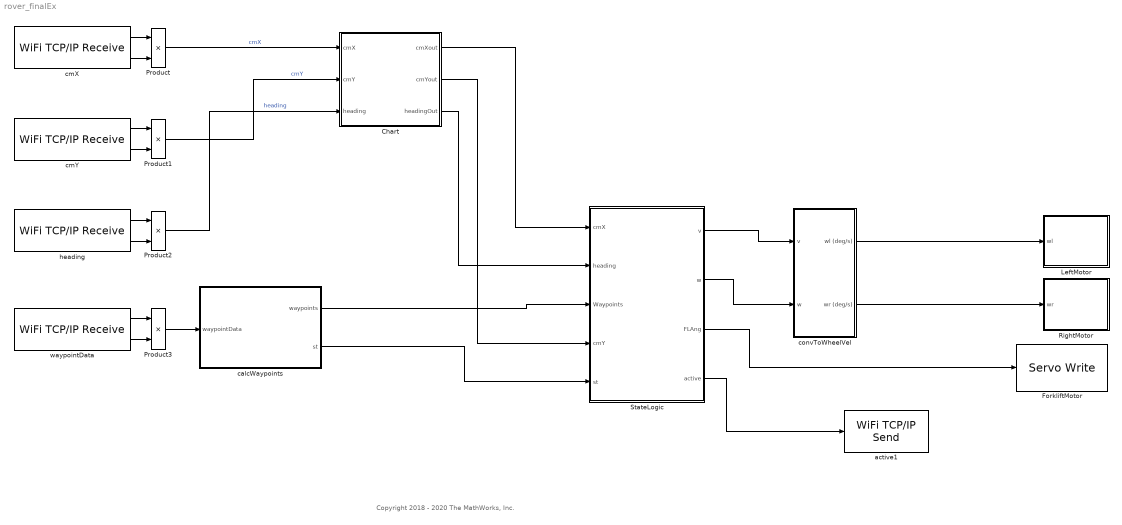
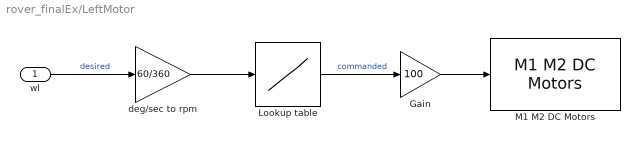
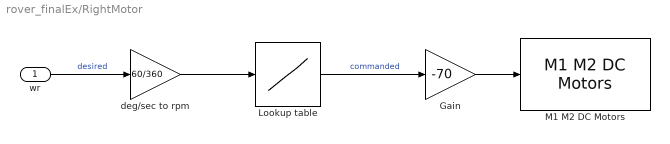
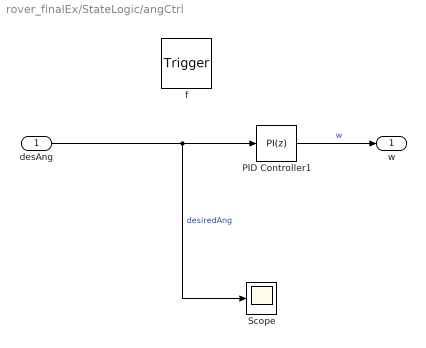
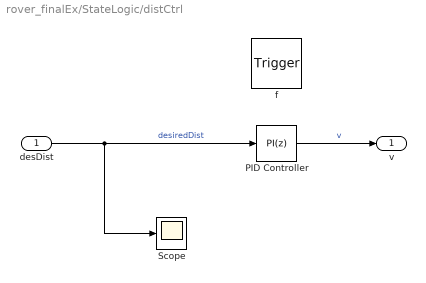
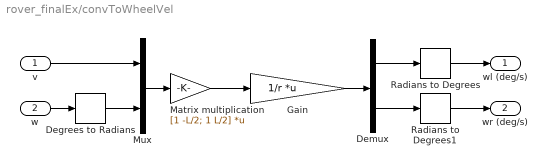
== stateflow chart rover_finalEx/calcWaypoints ==
  state waitForCalc
    en, du, ex:
    st = 0;
  state send
    en:
    waypoints = way;
    st = 1;
  state calc
    en:
    way(row, col) = waypointData;
    st = 0;
  state modPos
    en:
    col = 0;
    row = row + 1;
    st = 0;
  (default) -> waitForCalc
  waitForCalc -> send [order 2] : [row > 3]
  modPos -> waitForCalc
  calc -> waitForCalc [order 2]
  waitForCalc -> calc [order 1] : [waypointData ~= 0 && (row <= 3)]{col = col+1}
  calc -> modPos [order 1] : [col >= 2]
  data: waypoints output; waypointData input; row local =1; col local =0; way local =[0 0; 0 0; 0 0]; st output

== stateflow chart rover_finalEx/Chart ==
  state modifyHEADING
    en:
    headingOldValue = heading;
  state Send
    en:
    cmXout = cmXOldValue;
    cmYout = cmYOldValue;
    headingOut = headingOldValue;
  state modifyCMX
    en:
    cmXOldValue = cmX;
  state modifyCMY
    en:
    cmYOldValue = cmY;
  (default) -> Send
  modifyHEADING -> Send
  Send -> modifyCMX [order 1] : [cmX ~= 0]
  Send -> modifyHEADING [order 2] : [heading ~= 0]
  modifyCMX -> Send
  modifyCMY -> Send
  Send -> modifyCMY [order 3] : [cmY ~= 0]
  data: cmX input; cmY input; heading input; cmXout output; cmYout output; headingOut output; cmXOldValue local =0; cmYOldValue local =0; headingOldValue local =0

== stateflow chart rover_finalEx/StateLogic ==
  state Pause
    entry:
    v = 0; w= 0; FLAng = 160;
    active = 1;
  state Pause1
    entry:
    v = 0; w = 0; FLAng = 160;
    active = 1;
  state MoveForwardAndDrop
    state MoveToNextWayPoint
      en:
      desDist = calcDist(WPIndex)-10;
      v = distCtrl(desDist);
      du, ex:
      desDist = calcDist(WPIndex)-10;
      v = distCtrl(desDist);
      w = 0;
    state DropForklift
      en, du, ex:
      v = 0;
      w = 0;
      FLAng = FLAng-1;
    (default) -> MoveForwardAndDrop.MoveToNextWayPoint
    MoveForwardAndDrop.MoveToNextWayPoint -> MoveForwardAndDrop.DropForklift : [abs(desDist) < 6]{WPIndex = WPIndex+1}
  state Turn
    en:
    desAng = calcAngle(WPIndex);
    w = angCtrl(desAng);
    du:
    desAng = calcAngle(WPIndex);
    v = 0;
    w = angCtrl(desAng);
    ex:
    w = 0;
  state w = angCtrl(desAng) [function]
  state MoveForwardAndPickUp
    state MoveToNextWayPoint
      en:
      desDist = calcDist(WPIndex);
      v = distCtrl(desDist);
      du, ex:
      desDist = calcDist(WPIndex);
      v = distCtrl(desDist);
      w = 0;
    state DropForklift
      en, du, ex:
      v = 0;
      w = 0;
      FLAng = FLAng-1;
    state MoveRemaining
      du, ex:
      desDist = calcDist(WPIndex);
      v = distCtrl(desDist);
      w = 0;
    state LiftForklift1
      en, du, ex:
      v = 0;
      w = 0;
      FLAng = FLAng+1;
    (default) -> MoveForwardAndPickUp.MoveToNextWayPoint
    MoveForwardAndPickUp.MoveToNextWayPoint -> MoveForwardAndPickUp.DropForklift : [abs(desDist) < 20]
    MoveForwardAndPickUp.DropForklift -> MoveRemaining : [FLAng < 80]
    MoveRemaining -> LiftForklift1 : [abs(desDist) < 6]{WPIndex = WPIndex+1}
  state v = distCtrl(desDist) [function]
  state Stop
    en:
    v = 0;
    w = 0;
    active = 0;
  MoveForwardAndDrop.DropForklift -> (junction 182) : [FLAng < 80]
  LiftForklift1 -> (junction 182) : [FLAng > 160]
  (default) -> Pause
  Pause -> Pause1 : [st == 1 && cmX ~= 0 && cmY ~= 0]
  Pause1 -> Turn : after(1,sec)
  Turn -> (junction 198) : [abs(desAng) < 8]
  (junction 198) -> MoveForwardAndDrop [order 2] : [WPIndex == 2]
  (junction 198) -> MoveForwardAndPickUp [order 1] : [WPIndex == 1]
  (junction 182) -> Turn [order 2]
  (junction 182) -> Stop [order 1] : [WPIndex == size(Waypoints,1)]
  data: desAngle function_output; Index function_input; desDistance function_output; Index function_input; desAng function_input double; w function_output; desDist function_input double; v function_output; cmX input; heading input; v output double; w output double; desDist local; desAng local; Waypoints input; WPIndex local =1; FLAng output; cmY input; st input; active output
  function desAngle  = calcAngle(Index):
    | function desAngle  = calcAngle(Index)
    | 
    | toReachX = Waypoints(Index+1,1);
    | toReachY = Waypoints(Index+1,2);
    | x = cmX;
    | y = cmY;
    | distX = toReachX - x;
    | distY = toReachY - y;
    | if distX > 0 && distY >= 0
    |     quadrant = 1;
    | elseif distX <= 0 && distY > 0
    |     quadrant = 2;
    | elseif distX < 0 && distY <= 0
    |     quadrant = 3;
    | elseif distX >= 0 && distY < 0
    |     quadrant = 4;
    | else
    |     quadrant = 0;
    | end
    | desAngle = atand((toReachY-y)/(toReachX-x));
    | switch quadrant
    |     case 1
    |         
    |     case 2
    |         desAngle = 180-abs(desAngle);
    |     case 3
    |         desAngle = 180+desAngle;
    |     case 4
    |         desAngle = 360+desAngle;
    |     otherwise 
    |         desAngle = 0;
    | end
    | if desAngle > 360 
    |     desAngle = desAngle - 360;
    | end
    | 
    | desAngle = desAngle - 180;      %conversion needed to avoid the offset of 
    |                                 %the value compared to heading
    | desAngle = desAngle + heading;  %the angle to face the target
    | 
    |  if(desAngle > 180)             %conversions to avoid spinning too much
    |    desAngle = desAngle - 360;
    |  elseif(desAngle < -180)
    |      desAngle = desAngle + 360;
    |  end
    | end
  function desDistance = calcDist(Index):
    | function desDistance = calcDist(Index)
    | 
    | toReachX = Waypoints(Index+1,1);
    | toReachY = Waypoints(Index+1,2);
    | x = cmX;
    | y = cmY;
    | distX = toReachX - x;
    | distY = toReachY - y;
    | desDistance = sqrt(distX^2+distY^2);
    | end

/*
 * rover_finalEx.c
 *
 * Academic License - for use in teaching, academic research, and meeting
 * course requirements at degree granting institutions only.  Not for
 * government, commercial, or other organizational use.
 *
 * Code generation for model "rover_finalEx".
 *
 * Model version              : 6.2
 * Simulink Coder version : 9.8 (R2022b) 13-May-2022
 * C source code generated on : Sat Mar 11 14:32:02 2023
 *
 * Target selection: ert.tlc
 * Embedded hardware selection: ARM Compatible->ARM Cortex
 * Code generation objectives: Unspecified
 * Validation result: Not run
 */

#include "rover_finalEx.h"
#include "rtwtypes.h"
#include "rover_finalEx_types.h"
#include "rover_finalEx_private.h"
#include <math.h>
#include <string.h>
#include <stddef.h>

/* Named constants for Chart: '<Root>/Chart' */
#define rover_finalE_IN_NO_ACTIVE_CHILD ((uint8_T)0U)
#define rover_finalEx_IN_Send          ((uint8_T)1U)
#define rover_finalEx_IN_modifyCMX     ((uint8_T)2U)
#define rover_finalEx_IN_modifyCMY     ((uint8_T)3U)
#define rover_finalEx_IN_modifyHEADING ((uint8_T)4U)

/* Named constants for Chart: '<Root>/StateLogic' */
#define rover_f_IN_MoveForwardAndPickUp ((uint8_T)2U)
#define rover_f_IN_MoveToNextWayPoint_a ((uint8_T)4U)
#define rover_fin_IN_MoveForwardAndDrop ((uint8_T)1U)
#define rover_fin_IN_MoveToNextWayPoint ((uint8_T)2U)
#define rover_finalEx_IN_DropForklift  ((uint8_T)1U)
#define rover_finalEx_IN_LiftForklift1 ((uint8_T)2U)
#define rover_finalEx_IN_MoveRemaining ((uint8_T)3U)
#define rover_finalEx_IN_Pause         ((uint8_T)3U)
#define rover_finalEx_IN_Pause1        ((uint8_T)4U)
#define rover_finalEx_IN_Stop          ((uint8_T)5U)
#define rover_finalEx_IN_Turn          ((uint8_T)6U)

/* Named constants for Chart: '<Root>/calcWaypoints' */
#define rover_finalEx_IN_calc          ((uint8_T)1U)
#define rover_finalEx_IN_modPos        ((uint8_T)2U)
#define rover_finalEx_IN_send          ((uint8_T)3U)
#define rover_finalEx_IN_waitForCalc   ((uint8_T)4U)

/* Block signals (default storage) */
B_rover_finalEx_T rover_finalEx_B;

/* Block states (default storage) */
DW_rover_finalEx_T rover_finalEx_DW;

/* Real-time model */
static RT_MODEL_rover_finalEx_T rover_finalEx_M_;
RT_MODEL_rover_finalEx_T *const rover_finalEx_M = &rover_finalEx_M_;

/* Forward declaration for local functions */
static real_T rover_finalEx_calcAngle(real_T Index);
static real_T rover_finalEx_calcDist(real_T Index);
static void mkrmotorcarrier_ServoMotor_Serv(const
  motorcarrier_blocks_mkrmotorc_T *obj, int32_T value);
static void rover_fina_SystemCore_setup_iac(codertarget_arduinobase_int_i_T *obj);
static void rover_fin_SystemCore_setup_iacf(codertarget_arduinobase_int_i_T *obj);
static void rover_fi_SystemCore_setup_iacfj(codertarget_arduinobase_int_i_T *obj);
static void rover_f_SystemCore_setup_iacfjg(codertarget_arduinobase_int_i_T *obj);
static void rover_finalEx_SystemCore_setup(motorcarrier_blocks_mkrmotorc_T *obj);
static void rover_finalE_SystemCore_setup_i(motorcarrier_blocks_mkrmoto_i_T *obj);
static void rover_final_SystemCore_setup_ia(motorcarrier_blocks_mkrmoto_i_T *obj);
real_T look1_binlxpw(real_T u0, const real_T bp0[], const real_T table[],
                     uint32_T maxIndex)
{
  real_T frac;
  real_T yL_0d0;
  uint32_T bpIdx;
  uint32_T iLeft;
  uint32_T iRght;

  /* Column-major Lookup 1-D
     Search method: 'binary'
     Use previous index: 'off'
     Interpolation method: 'Linear point-slope'
     Extrapolation method: 'Linear'
     Use last breakpoint for index at or above upper limit: 'off'
     Remove protection against out-of-range input in generated code: 'off'
   */
  /* Prelookup - Index and Fraction
     Index Search method: 'binary'
     Extrapolation method: 'Linear'
     Use previous index: 'off'
     Use last breakpoint for index at or above upper limit: 'off'
     Remove protection against out-of-range input in generated code: 'off'
   */
  if (u0 <= bp0[0U]) {
    iLeft = 0U;
    frac = (u0 - bp0[0U]) / (bp0[1U] - bp0[0U]);
  } else if (u0 < bp0[maxIndex]) {
    /* Binary Search */
    bpIdx = maxIndex >> 1U;
    iLeft = 0U;
    iRght = maxIndex;
    while (iRght - iLeft > 1U) {
      if (u0 < bp0[bpIdx]) {
        iRght = bpIdx;
      } else {
        iLeft = bpIdx;
      }

      bpIdx = (iRght + iLeft) >> 1U;
    }

    frac = (u0 - bp0[iLeft]) / (bp0[iLeft + 1U] - bp0[iLeft]);
  } else {
    iLeft = maxIndex - 1U;
    frac = (u0 - bp0[maxIndex - 1U]) / (bp0[maxIndex] - bp0[maxIndex - 1U]);
  }

  /* Column-major Interpolation 1-D
     Interpolation method: 'Linear point-slope'
     Use last breakpoint for index at or above upper limit: 'off'
     Overflow mode: 'portable wrapping'
   */
  yL_0d0 = table[iLeft];
  return (table[iLeft + 1U] - yL_0d0) * frac + yL_0d0;
}

void mul_wide_s32(int32_T in0, int32_T in1, uint32_T *ptrOutBitsHi, uint32_T
                  *ptrOutBitsLo)
{
  uint32_T absIn0;
  uint32_T absIn1;
  uint32_T in0Hi;
  uint32_T in0Lo;
  uint32_T in1Hi;
  uint32_T productHiLo;
  uint32_T productLoHi;
  absIn0 = in0 < 0 ? ~(uint32_T)in0 + 1U : (uint32_T)in0;
  absIn1 = in1 < 0 ? ~(uint32_T)in1 + 1U : (uint32_T)in1;
  in0Hi = absIn0 >> 16U;
  in0Lo = absIn0 & 65535U;
  in1Hi = absIn1 >> 16U;
  absIn0 = absIn1 & 65535U;
  productHiLo = in0Hi * absIn0;
  productLoHi = in0Lo * in1Hi;
  absIn0 *= in0Lo;
  absIn1 = 0U;
  in0Lo = (productLoHi << /*MW:OvBitwiseOk*/ 16U) + /*MW:OvCarryOk*/ absIn0;
  if (in0Lo < absIn0) {
    absIn1 = 1U;
  }

  absIn0 = in0Lo;
  in0Lo += /*MW:OvCarryOk*/ productHiLo << /*MW:OvBitwiseOk*/ 16U;
  if (in0Lo < absIn0) {
    absIn1++;
  }

  absIn0 = (((productLoHi >> 16U) + (productHiLo >> 16U)) + in0Hi * in1Hi) +
    absIn1;
  if ((in0 != 0) && ((in1 != 0) && ((in0 > 0) != (in1 > 0)))) {
    absIn0 = ~absIn0;
    in0Lo = ~in0Lo;
    in0Lo++;
    if (in0Lo == 0U) {
      absIn0++;
    }
  }

  *ptrOutBitsHi = absIn0;
  *ptrOutBitsLo = in0Lo;
}

int32_T mul_s32_sat(int32_T a, int32_T b)
{
  int32_T result;
  uint32_T u32_chi;
  uint32_T u32_clo;
  mul_wide_s32(a, b, &u32_chi, &u32_clo);
  if (((int32_T)u32_chi > 0) || ((u32_chi == 0U) && (u32_clo >= 2147483648U))) {
    result = MAX_int32_T;
  } else if (((int32_T)u32_chi < -1) || (((int32_T)u32_chi == -1) && (u32_clo <
               2147483648U))) {
    result = MIN_int32_T;
  } else {
    result = (int32_T)u32_clo;
  }

  return result;
}

/* System initialize for function-call system: '<S4>/angCtrl' */
void rover_finalEx_angCtrl_Init(DW_angCtrl_rover_finalEx_T *localDW,
  P_angCtrl_rover_finalEx_T *localP)
{
  /* InitializeConditions for DiscreteIntegrator: '<S41>/Integrator' */
  localDW->Integrator_DSTATE = localP->PIDController1_InitialCondition;
}

/* Output and update for function-call system: '<S4>/angCtrl' */
void rover_finalEx_angCtrl(real_T rtu_desAng, B_angCtrl_rover_finalEx_T *localB,
  DW_angCtrl_rover_finalEx_T *localDW, P_angCtrl_rover_finalEx_T *localP)
{
  /* Sum: '<S50>/Sum' incorporates:
   *  DiscreteIntegrator: '<S41>/Integrator'
   *  Gain: '<S46>/Proportional Gain'
   */
  localB->Sum = localP->PIDController1_P * rtu_desAng +
    localDW->Integrator_DSTATE;

  /* Update for DiscreteIntegrator: '<S41>/Integrator' incorporates:
   *  Gain: '<S38>/Integral Gain'
   */
  localDW->Integrator_DSTATE += localP->PIDController1_I * rtu_desAng *
    localP->Integrator_gainval;
}

/* System initialize for function-call system: '<S4>/distCtrl' */
void rover_finalEx_distCtrl_Init(DW_distCtrl_rover_finalEx_T *localDW,
  P_distCtrl_rover_finalEx_T *localP)
{
  /* InitializeConditions for DiscreteIntegrator: '<S90>/Integrator' */
  localDW->Integrator_DSTATE = localP->PIDController_InitialConditionF;
}

/* Output and update for function-call system: '<S4>/distCtrl' */
void rover_finalEx_distCtrl(real_T rtu_desDist, B_distCtrl_rover_finalEx_T
  *localB, DW_distCtrl_rover_finalEx_T *localDW, P_distCtrl_rover_finalEx_T
  *localP)
{
  /* Sum: '<S99>/Sum' incorporates:
   *  DiscreteIntegrator: '<S90>/Integrator'
   *  Gain: '<S95>/Proportional Gain'
   */
  localB->Sum = localP->PIDController_P * rtu_desDist +
    localDW->Integrator_DSTATE;

  /* Update for DiscreteIntegrator: '<S90>/Integrator' incorporates:
   *  Gain: '<S87>/Integral Gain'
   */
  localDW->Integrator_DSTATE += localP->PIDController_I * rtu_desDist *
    localP->Integrator_gainval;
}

/* Function for Chart: '<Root>/StateLogic' */
static real_T rover_finalEx_calcAngle(real_T Index)
{
  real_T desAngle;
  real_T distX_tmp;
  real_T distY_tmp;
  int32_T tmp;
  distX_tmp = rover_finalEx_B.waypoints[(int32_T)(Index + 1.0) - 1] -
    rover_finalEx_B.cmXout;
  distY_tmp = rover_finalEx_B.waypoints[(int32_T)(Index + 1.0) + 2] -
    rover_finalEx_B.cmYout;
  desAngle = atan(distY_tmp / distX_tmp) * 57.295779513082323;
  if ((distX_tmp > 0.0) && (distY_tmp >= 0.0)) {
    tmp = 1;
  } else if ((distX_tmp <= 0.0) && (distY_tmp > 0.0)) {
    tmp = 2;
  } else if ((distX_tmp < 0.0) && (distY_tmp <= 0.0)) {
    tmp = 3;
  } else if ((distX_tmp >= 0.0) && (distY_tmp < 0.0)) {
    tmp = 4;
  } else {
    tmp = 0;
  }

  switch (tmp) {
   case 1:
    break;

   case 2:
    desAngle = 180.0 - fabs(desAngle);
    break;

   case 3:
    desAngle += 180.0;
    break;

   case 4:
    desAngle += 360.0;
    break;

   default:
    desAngle = 0.0;
    break;
  }

  if (desAngle > 360.0) {
    desAngle -= 360.0;
  }

  desAngle -= 180.0;
  desAngle += rover_finalEx_B.headingOut;
  if (desAngle > 180.0) {
    desAngle -= 360.0;
  } else if (desAngle < -180.0) {
    desAngle += 360.0;
  }

  return desAngle;
}

/* Function for Chart: '<Root>/StateLogic' */
static real_T rover_finalEx_calcDist(real_T Index)
{
  real_T a;
  real_T b_a;
  a = rover_finalEx_B.waypoints[(int32_T)(Index + 1.0) - 1] -
    rover_finalEx_B.cmXout;
  b_a = rover_finalEx_B.waypoints[(int32_T)(Index + 1.0) + 2] -
    rover_finalEx_B.cmYout;
  return sqrt(a * a + b_a * b_a);
}

real_T rt_roundd_snf(real_T u)
{
  real_T y;
  if (fabs(u) < 4.503599627370496E+15) {
    if (u >= 0.5) {
      y = floor(u + 0.5);
    } else if (u > -0.5) {
      y = u * 0.0;
    } else {
      y = ceil(u - 0.5);
    }
  } else {
    y = u;
  }

  return y;
}

static void mkrmotorcarrier_ServoMotor_Serv(const
  motorcarrier_blocks_mkrmotorc_T *obj, int32_T value)
{
  int32_T x;
  int32_T z;
  uint32_T q;
  uint32_T y;
  uint8_T SwappedDataBytes[6];
  uint8_T final_data_to_write[6];
  uint8_T data_uint8[4];
  x = mul_s32_sat(value, 21);
  if (x >= 0) {
    y = (uint32_T)x;
  } else if (x == MIN_int32_T) {
    y = 2147483648U;
  } else {
    y = (uint32_T)-x;
  }

  q = y / 180U;
  y -= q * 180U;
  if ((y > 0U) && (y >= 90U)) {
    q++;
  }

  z = (int32_T)q;
  if (x < 0) {
    z = -(int32_T)q;
  }

  x = z + 7;
  memcpy((void *)&data_uint8[0], (void *)&x, (size_t)4 * sizeof(uint8_T));
  final_data_to_write[0] = 3U;
  final_data_to_write[1] = 2U;
  final_data_to_write[2] = data_uint8[0];
  final_data_to_write[3] = data_uint8[1];
  final_data_to_write[4] = data_uint8[2];
  final_data_to_write[5] = data_uint8[3];
  memcpy((void *)&SwappedDataBytes[0], (void *)&final_data_to_write[0], (size_t)
         6 * sizeof(uint8_T));
  MW_I2C_MasterWrite(obj->i2cObj.I2CDriverObj.MW_I2C_HANDLE, 102U,
                     &SwappedDataBytes[0], 6U, false, false);
}

static void rover_fina_SystemCore_setup_iac(codertarget_arduinobase_int_i_T *obj)
{
  obj->isInitialized = 1;
  obj->isServer_ = 1.0;
  MW_WifiAndWifiTCPServerBegin(1, 25000.0, obj->isServer_, 192, 168, 1, 2);
  obj->TunablePropsChanged = false;
}

static void rover_fin_SystemCore_setup_iacf(codertarget_arduinobase_int_i_T *obj)
{
  obj->isInitialized = 1;
  obj->isServer_ = 1.0;
  MW_WifiAndWifiTCPServerBegin(2, 25001.0, obj->isServer_, 192, 168, 1, 2);
  obj->TunablePropsChanged = false;
}

static void rover_fi_SystemCore_setup_iacfj(codertarget_arduinobase_int_i_T *obj)
{
  obj->isInitialized = 1;
  obj->isServer_ = 1.0;
  MW_WifiAndWifiTCPServerBegin(3, 25002.0, obj->isServer_, 192, 168, 1, 2);
  obj->TunablePropsChanged = false;
}

static void rover_f_SystemCore_setup_iacfjg(codertarget_arduinobase_int_i_T *obj)
{
  obj->isInitialized = 1;
  obj->isServer_ = 1.0;
  MW_WifiAndWifiTCPServerBegin(4, 25003.0, obj->isServer_, 192, 168, 1, 2);
  obj->TunablePropsChanged = false;
}

static void rover_finalEx_SystemCore_setup(motorcarrier_blocks_mkrmotorc_T *obj)
{
  MW_I2C_Mode_Type modename;
  uint32_T i2cname;
  f_codertarget_arduinobase_int_T *obj_0;
  int32_T x;
  uint32_T varargin_1;
  uint8_T SwappedDataBytes[6];
  uint8_T final_data_to_write[6];
  uint8_T data_uint8[4];
  obj->isSetupComplete = false;
  obj->isInitialized = 1;
  obj_0 = &obj->i2cObj;
  modename = MW_I2C_MASTER;
  i2cname = 0;
  obj->i2cObj.I2CDriverObj.MW_I2C_HANDLE = MW_I2C_Open(i2cname, modename);
  obj->i2cObj.BusSpeed = 100000U;
  varargin_1 = obj->i2cObj.BusSpeed;
  MW_I2C_SetBusSpeed(obj_0->I2CDriverObj.MW_I2C_HANDLE, varargin_1);
  x = 100;
  memcpy((void *)&data_uint8[0], (void *)&x, (size_t)4 * sizeof(uint8_T));
  final_data_to_write[0] = 4U;
  final_data_to_write[1] = 2U;
  final_data_to_write[2] = data_uint8[0];
  final_data_to_write[3] = data_uint8[1];
  final_data_to_write[4] = data_uint8[2];
  final_data_to_write[5] = data_uint8[3];
  memcpy((void *)&SwappedDataBytes[0], (void *)&final_data_to_write[0], (size_t)
         6 * sizeof(uint8_T));
  MW_I2C_MasterWrite(obj->i2cObj.I2CDriverObj.MW_I2C_HANDLE, 102U,
                     &SwappedDataBytes[0], 6U, false, false);
  obj->isSetupComplete = true;
}

static void rover_finalE_SystemCore_setup_i(motorcarrier_blocks_mkrmoto_i_T *obj)
{
  MW_I2C_Mode_Type modename;
  uint32_T i2cname;
  f_codertarget_arduinobase_int_T *obj_0;
  int32_T x;
  uint32_T varargin_1;
  uint8_T SwappedDataBytes[6];
  uint8_T final_data_to_write[6];
  uint8_T data_uint8[4];
  obj->isSetupComplete = false;
  obj->isInitialized = 1;
  obj_0 = &obj->i2cObj;
  modename = MW_I2C_MASTER;
  i2cname = 0;
  obj->i2cObj.I2CDriverObj.MW_I2C_HANDLE = MW_I2C_Open(i2cname, modename);
  obj->i2cObj.BusSpeed = 100000U;
  varargin_1 = obj->i2cObj.BusSpeed;
  MW_I2C_SetBusSpeed(obj_0->I2CDriverObj.MW_I2C_HANDLE, varargin_1);
  x = 100;
  memcpy((void *)&data_uint8[0], (void *)&x, (size_t)4 * sizeof(uint8_T));
  final_data_to_write[0] = 6U;
  final_data_to_write[1] = 1U;
  final_data_to_write[2] = data_uint8[0];
  final_data_to_write[3] = data_uint8[1];
  final_data_to_write[4] = data_uint8[2];
  final_data_to_write[5] = data_uint8[3];
  memcpy((void *)&SwappedDataBytes[0], (void *)&final_data_to_write[0], (size_t)
         6 * sizeof(uint8_T));
  MW_I2C_MasterWrite(obj->i2cObj.I2CDriverObj.MW_I2C_HANDLE, 102U,
                     &SwappedDataBytes[0], 6U, false, false);
  obj->isSetupComplete = true;
}

static void rover_final_SystemCore_setup_ia(motorcarrier_blocks_mkrmoto_i_T *obj)
{
  MW_I2C_Mode_Type modename;
  uint32_T i2cname;
  f_codertarget_arduinobase_int_T *obj_0;
  int32_T x;
  uint32_T varargin_1;
  uint8_T SwappedDataBytes[6];
  uint8_T final_data_to_write[6];
  uint8_T data_uint8[4];
  obj->isSetupComplete = false;
  obj->isInitialized = 1;
  obj_0 = &obj->i2cObj;
  modename = MW_I2C_MASTER;
  i2cname = 0;
  obj->i2cObj.I2CDriverObj.MW_I2C_HANDLE = MW_I2C_Open(i2cname, modename);
  obj->i2cObj.BusSpeed = 100000U;
  varargin_1 = obj->i2cObj.BusSpeed;
  MW_I2C_SetBusSpeed(obj_0->I2CDriverObj.MW_I2C_HANDLE, varargin_1);
  x = 100;
  memcpy((void *)&data_uint8[0], (void *)&x, (size_t)4 * sizeof(uint8_T));
  final_data_to_write[0] = 6U;
  final_data_to_write[1] = 0U;
  final_data_to_write[2] = data_uint8[0];
  final_data_to_write[3] = data_uint8[1];
  final_data_to_write[4] = data_uint8[2];
  final_data_to_write[5] = data_uint8[3];
  memcpy((void *)&SwappedDataBytes[0], (void *)&final_data_to_write[0], (size_t)
         6 * sizeof(uint8_T));
  MW_I2C_MasterWrite(obj->i2cObj.I2CDriverObj.MW_I2C_HANDLE, 102U,
                     &SwappedDataBytes[0], 6U, false, false);
  obj->isSetupComplete = true;
}

/* Model step function */
void rover_finalEx_step(void)
{
  f_codertarget_arduinobase_int_T *obj;
  int32_T In;
  uint8_T SwappedDataBytes[6];
  uint8_T final_data_to_write[6];
  uint8_T data_uint8[4];
  boolean_T guard1 = false;

  /* MATLABSystem: '<Root>/cmX' */
  if (rover_finalEx_DW.obj_lw.TunablePropsChanged) {
    rover_finalEx_DW.obj_lw.TunablePropsChanged = false;
  }

  MW_WifiTCPFinalread(1, &rover_finalEx_B.heading, 8, &In,
                      rover_finalEx_DW.obj_lw.isServer_, 0U);

  /* Product: '<Root>/Product' incorporates:
   *  MATLABSystem: '<Root>/cmX'
   */
  rover_finalEx_B.cmX = rover_finalEx_B.heading * (real_T)In;

  /* MATLABSystem: '<Root>/cmY' */
  if (rover_finalEx_DW.obj_b.TunablePropsChanged) {
    rover_finalEx_DW.obj_b.TunablePropsChanged = false;
  }

  MW_WifiTCPFinalread(2, &rover_finalEx_B.heading, 8, &In,
                      rover_finalEx_DW.obj_b.isServer_, 0U);

  /* Product: '<Root>/Product1' incorporates:
   *  MATLABSystem: '<Root>/cmY'
   */
  rover_finalEx_B.cmY = rover_finalEx_B.heading * (real_T)In;

  /* MATLABSystem: '<Root>/heading' */
  if (rover_finalEx_DW.obj_l.TunablePropsChanged) {
    rover_finalEx_DW.obj_l.TunablePropsChanged = false;
  }

  MW_WifiTCPFinalread(3, &rover_finalEx_B.heading, 8, &In,
                      rover_finalEx_DW.obj_l.isServer_, 0U);

  /* Product: '<Root>/Product2' incorporates:
   *  MATLABSystem: '<Root>/heading'
   */
  rover_finalEx_B.heading *= (real_T)In;

  /* Chart: '<Root>/Chart' */
  if (rover_finalEx_DW.is_active_c2_rover_finalEx == 0U) {
    rover_finalEx_DW.is_active_c2_rover_finalEx = 1U;
    rover_finalEx_DW.is_c2_rover_finalEx = rover_finalEx_IN_Send;
    rover_finalEx_B.cmXout = rover_finalEx_DW.cmXOldValue;
    rover_finalEx_B.cmYout = rover_finalEx_DW.cmYOldValue;
    rover_finalEx_B.headingOut = rover_finalEx_DW.headingOldValue;
  } else {
    switch (rover_finalEx_DW.is_c2_rover_finalEx) {
     case rover_finalEx_IN_Send:
      if (rover_finalEx_B.cmX != 0.0) {
        rover_finalEx_DW.is_c2_rover_finalEx = rover_finalEx_IN_modifyCMX;
        rover_finalEx_DW.cmXOldValue = rover_finalEx_B.cmX;
      } else if (rover_finalEx_B.heading != 0.0) {
        rover_finalEx_DW.is_c2_rover_finalEx = rover_finalEx_IN_modifyHEADING;
        rover_finalEx_DW.headingOldValue = rover_finalEx_B.heading;
      } else if (rover_finalEx_B.cmY != 0.0) {
        rover_finalEx_DW.is_c2_rover_finalEx = rover_finalEx_IN_modifyCMY;
        rover_finalEx_DW.cmYOldValue = rover_finalEx_B.cmY;
      }
      break;

     case rover_finalEx_IN_modifyCMX:
      rover_finalEx_DW.is_c2_rover_finalEx = rover_finalEx_IN_Send;
      rover_finalEx_B.cmXout = rover_finalEx_DW.cmXOldValue;
      rover_finalEx_B.cmYout = rover_finalEx_DW.cmYOldValue;
      rover_finalEx_B.headingOut = rover_finalEx_DW.headingOldValue;
      break;

     case rover_finalEx_IN_modifyCMY:
      rover_finalEx_DW.is_c2_rover_finalEx = rover_finalEx_IN_Send;
      rover_finalEx_B.cmXout = rover_finalEx_DW.cmXOldValue;
      rover_finalEx_B.cmYout = rover_finalEx_DW.cmYOldValue;
      rover_finalEx_B.headingOut = rover_finalEx_DW.headingOldValue;
      break;

     default:
      /* case IN_modifyHEADING: */
      rover_finalEx_DW.is_c2_rover_finalEx = rover_finalEx_IN_Send;
      rover_finalEx_B.cmXout = rover_finalEx_DW.cmXOldValue;
      rover_finalEx_B.cmYout = rover_finalEx_DW.cmYOldValue;
      rover_finalEx_B.headingOut = rover_finalEx_DW.headingOldValue;
      break;
    }
  }

  /* End of Chart: '<Root>/Chart' */

  /* MATLABSystem: '<Root>/waypointData' */
  if (rover_finalEx_DW.obj_a.TunablePropsChanged) {
    rover_finalEx_DW.obj_a.TunablePropsChanged = false;
  }

  MW_WifiTCPFinalread(4, &rover_finalEx_B.heading, 8, &In,
                      rover_finalEx_DW.obj_a.isServer_, 0U);

  /* Product: '<Root>/Product3' incorporates:
   *  MATLABSystem: '<Root>/waypointData'
   */
  rover_finalEx_B.cmX = rover_finalEx_B.heading * (real_T)In;

  /* Chart: '<Root>/calcWaypoints' */
  if (rover_finalEx_DW.is_active_c1_rover_finalEx == 0U) {
    rover_finalEx_DW.is_active_c1_rover_finalEx = 1U;
    rover_finalEx_DW.is_c1_rover_finalEx = rover_finalEx_IN_waitForCalc;
    rover_finalEx_B.st = 0.0;
  } else {
    switch (rover_finalEx_DW.is_c1_rover_finalEx) {
     case rover_finalEx_IN_calc:
      if (rover_finalEx_DW.col >= 2.0) {
        rover_finalEx_DW.is_c1_rover_finalEx = rover_finalEx_IN_modPos;
        rover_finalEx_DW.col = 0.0;
        rover_finalEx_DW.row++;
        rover_finalEx_B.st = 0.0;
      } else {
        rover_finalEx_DW.is_c1_rover_finalEx = rover_finalEx_IN_waitForCalc;
        rover_finalEx_B.st = 0.0;
      }
      break;

     case rover_finalEx_IN_modPos:
      rover_finalEx_DW.is_c1_rover_finalEx = rover_finalEx_IN_waitForCalc;
      rover_finalEx_B.st = 0.0;
      break;

     case rover_finalEx_IN_send:
      break;

     default:
      /* case IN_waitForCalc: */
      if ((rover_finalEx_B.cmX != 0.0) && (rover_finalEx_DW.row <= 3.0)) {
        rover_finalEx_DW.col++;
        rover_finalEx_DW.is_c1_rover_finalEx = rover_finalEx_IN_calc;
        rover_finalEx_DW.way[((int32_T)rover_finalEx_DW.row + 3 * ((int32_T)
          rover_finalEx_DW.col - 1)) - 1] = rover_finalEx_B.cmX;
        rover_finalEx_B.st = 0.0;
      } else if (rover_finalEx_DW.row > 3.0) {
        rover_finalEx_DW.is_c1_rover_finalEx = rover_finalEx_IN_send;
        for (In = 0; In < 6; In++) {
          rover_finalEx_B.waypoints[In] = rover_finalEx_DW.way[In];
        }

        rover_finalEx_B.st = 1.0;
      } else {
        rover_finalEx_B.st = 0.0;
      }
      break;
    }
  }

  /* End of Chart: '<Root>/calcWaypoints' */

  /* Chart: '<Root>/StateLogic' */
  if (rover_finalEx_DW.temporalCounter_i1 < 127U) {
    rover_finalEx_DW.temporalCounter_i1++;
  }

  if (rover_finalEx_DW.is_active_c3_rover_finalEx == 0U) {
    rover_finalEx_DW.is_active_c3_rover_finalEx = 1U;
    rover_finalEx_DW.is_c3_rover_finalEx = rover_finalEx_IN_Pause;
    rover_finalEx_B.v = 0.0;
    rover_finalEx_B.w = 0.0;
    rover_finalEx_B.FLAng = 160.0;
    rover_finalEx_B.active = 1.0;
  } else {
    guard1 = false;
    switch (rover_finalEx_DW.is_c3_rover_finalEx) {
     case rover_fin_IN_MoveForwardAndDrop:
      if (rover_finalEx_DW.is_MoveForwardAndDrop ==
          rover_finalEx_IN_DropForklift) {
        if (rover_finalEx_B.FLAng < 80.0) {
          if (rover_finalEx_DW.WPIndex == 3.0) {
            rover_finalEx_B.FLAng--;
            rover_finalEx_DW.is_MoveForwardAndDrop =
              rover_finalE_IN_NO_ACTIVE_CHILD;
            rover_finalEx_DW.is_c3_rover_finalEx = rover_finalEx_IN_Stop;
            rover_finalEx_B.v = 0.0;
            rover_finalEx_B.w = 0.0;
            rover_finalEx_B.active = 0.0;
          } else {
            rover_finalEx_B.v = 0.0;
            rover_finalEx_B.FLAng--;
            rover_finalEx_DW.is_MoveForwardAndDrop =
              rover_finalE_IN_NO_ACTIVE_CHILD;
            rover_finalEx_DW.is_c3_rover_finalEx = rover_finalEx_IN_Turn;
            rover_finalEx_DW.desAng = rover_finalEx_calcAngle
              (rover_finalEx_DW.WPIndex);

            /* Outputs for Function Call SubSystem: '<S4>/angCtrl' */
            rover_finalEx_angCtrl(rover_finalEx_DW.desAng,
                                  &rover_finalEx_B.angCtrl,
                                  &rover_finalEx_DW.angCtrl,
                                  &rover_finalEx_P.angCtrl);

            /* End of Outputs for SubSystem: '<S4>/angCtrl' */
            rover_finalEx_B.w = rover_finalEx_B.angCtrl.Sum;
          }
        } else {
          rover_finalEx_B.v = 0.0;
          rover_finalEx_B.w = 0.0;
          rover_finalEx_B.FLAng--;
        }

        /* case IN_MoveToNextWayPoint: */
      } else if (fabs(rover_finalEx_DW.desDist) < 6.0) {
        rover_finalEx_DW.WPIndex++;
        rover_finalEx_DW.desDist = rover_finalEx_calcDist
          (rover_finalEx_DW.WPIndex) - 10.0;

        /* Outputs for Function Call SubSystem: '<S4>/distCtrl' */
        rover_finalEx_distCtrl(rover_finalEx_DW.desDist,
          &rover_finalEx_B.distCtrl, &rover_finalEx_DW.distCtrl,
          &rover_finalEx_P.distCtrl);

        /* End of Outputs for SubSystem: '<S4>/distCtrl' */
        rover_finalEx_DW.is_MoveForwardAndDrop = rover_finalEx_IN_DropForklift;
        rover_finalEx_B.v = 0.0;
        rover_finalEx_B.w = 0.0;
        rover_finalEx_B.FLAng--;
      } else {
        rover_finalEx_DW.desDist = rover_finalEx_calcDist
          (rover_finalEx_DW.WPIndex) - 10.0;

        /* Outputs for Function Call SubSystem: '<S4>/distCtrl' */
        rover_finalEx_distCtrl(rover_finalEx_DW.desDist,
          &rover_finalEx_B.distCtrl, &rover_finalEx_DW.distCtrl,
          &rover_finalEx_P.distCtrl);

        /* End of Outputs for SubSystem: '<S4>/distCtrl' */
        rover_finalEx_B.v = rover_finalEx_B.distCtrl.Sum;
        rover_finalEx_B.w = 0.0;
      }
      break;

     case rover_f_IN_MoveForwardAndPickUp:
      switch (rover_finalEx_DW.is_MoveForwardAndPickUp) {
       case rover_finalEx_IN_DropForklift:
        if (rover_finalEx_B.FLAng < 80.0) {
          rover_finalEx_B.v = 0.0;
          rover_finalEx_B.w = 0.0;
          rover_finalEx_B.FLAng--;
          rover_finalEx_DW.is_MoveForwardAndPickUp =
            rover_finalEx_IN_MoveRemaining;
        } else {
          rover_finalEx_B.v = 0.0;
          rover_finalEx_B.w = 0.0;
          rover_finalEx_B.FLAng--;
        }
        break;

       case rover_finalEx_IN_LiftForklift1:
        if (rover_finalEx_B.FLAng > 160.0) {
          if (rover_finalEx_DW.WPIndex == 3.0) {
            rover_finalEx_B.FLAng++;
            rover_finalEx_DW.is_MoveForwardAndPickUp =
              rover_finalE_IN_NO_ACTIVE_CHILD;
            rover_finalEx_DW.is_c3_rover_finalEx = rover_finalEx_IN_Stop;
            rover_finalEx_B.v = 0.0;
            rover_finalEx_B.w = 0.0;
            rover_finalEx_B.active = 0.0;
          } else {
            rover_finalEx_B.v = 0.0;
            rover_finalEx_B.FLAng++;
            rover_finalEx_DW.is_MoveForwardAndPickUp =
              rover_finalE_IN_NO_ACTIVE_CHILD;
            rover_finalEx_DW.is_c3_rover_finalEx = rover_finalEx_IN_Turn;
            rover_finalEx_DW.desAng = rover_finalEx_calcAngle
              (rover_finalEx_DW.WPIndex);

            /* Outputs for Function Call SubSystem: '<S4>/angCtrl' */
            rover_finalEx_angCtrl(rover_finalEx_DW.desAng,
                                  &rover_finalEx_B.angCtrl,
                                  &rover_finalEx_DW.angCtrl,
                                  &rover_finalEx_P.angCtrl);

            /* End of Outputs for SubSystem: '<S4>/angCtrl' */
            rover_finalEx_B.w = rover_finalEx_B.angCtrl.Sum;
          }
        } else {
          rover_finalEx_B.v = 0.0;
          rover_finalEx_B.w = 0.0;
          rover_finalEx_B.FLAng++;
        }
        break;

       case rover_finalEx_IN_MoveRemaining:
        if (fabs(rover_finalEx_DW.desDist) < 6.0) {
          rover_finalEx_DW.WPIndex++;
          rover_finalEx_DW.desDist = rover_finalEx_calcDist
            (rover_finalEx_DW.WPIndex);

          /* Outputs for Function Call SubSystem: '<S4>/distCtrl' */
          rover_finalEx_distCtrl(rover_finalEx_DW.desDist,
            &rover_finalEx_B.distCtrl, &rover_finalEx_DW.distCtrl,
            &rover_finalEx_P.distCtrl);

          /* End of Outputs for SubSystem: '<S4>/distCtrl' */
          rover_finalEx_DW.is_MoveForwardAndPickUp =
            rover_finalEx_IN_LiftForklift1;
          rover_finalEx_B.v = 0.0;
          rover_finalEx_B.w = 0.0;
          rover_finalEx_B.FLAng++;
        } else {
          rover_finalEx_DW.desDist = rover_finalEx_calcDist
            (rover_finalEx_DW.WPIndex);

          /* Outputs for Function Call SubSystem: '<S4>/distCtrl' */
          rover_finalEx_distCtrl(rover_finalEx_DW.desDist,
            &rover_finalEx_B.distCtrl, &rover_finalEx_DW.distCtrl,
            &rover_finalEx_P.distCtrl);

          /* End of Outputs for SubSystem: '<S4>/distCtrl' */
          rover_finalEx_B.v = rover_finalEx_B.distCtrl.Sum;
          rover_finalEx_B.w = 0.0;
        }
        break;

       default:
        /* case IN_MoveToNextWayPoint: */
        if (fabs(rover_finalEx_DW.desDist) < 20.0) {
          rover_finalEx_DW.desDist = rover_finalEx_calcDist
            (rover_finalEx_DW.WPIndex);

          /* Outputs for Function Call SubSystem: '<S4>/distCtrl' */
          rover_finalEx_distCtrl(rover_finalEx_DW.desDist,
            &rover_finalEx_B.distCtrl, &rover_finalEx_DW.distCtrl,
            &rover_finalEx_P.distCtrl);

          /* End of Outputs for SubSystem: '<S4>/distCtrl' */
          rover_finalEx_DW.is_MoveForwardAndPickUp =
            rover_finalEx_IN_DropForklift;
          rover_finalEx_B.v = 0.0;
          rover_finalEx_B.w = 0.0;
          rover_finalEx_B.FLAng--;
        } else {
          rover_finalEx_DW.desDist = rover_finalEx_calcDist
            (rover_finalEx_DW.WPIndex);

          /* Outputs for Function Call SubSystem: '<S4>/distCtrl' */
          rover_finalEx_distCtrl(rover_finalEx_DW.desDist,
            &rover_finalEx_B.distCtrl, &rover_finalEx_DW.distCtrl,
            &rover_finalEx_P.distCtrl);

          /* End of Outputs for SubSystem: '<S4>/distCtrl' */
          rover_finalEx_B.v = rover_finalEx_B.distCtrl.Sum;
          rover_finalEx_B.w = 0.0;
        }
        break;
      }
      break;

     case rover_finalEx_IN_Pause:
      rover_finalEx_B.active = 1.0;
      if ((rover_finalEx_B.st == 1.0) && (rover_finalEx_B.cmXout != 0.0) &&
          (rover_finalEx_B.cmYout != 0.0)) {
        rover_finalEx_DW.is_c3_rover_finalEx = rover_finalEx_IN_Pause1;
        rover_finalEx_DW.temporalCounter_i1 = 0U;
        rover_finalEx_B.v = 0.0;
        rover_finalEx_B.w = 0.0;
        rover_finalEx_B.FLAng = 160.0;
      }
      break;

     case rover_finalEx_IN_Pause1:
      rover_finalEx_B.active = 1.0;
      if (rover_finalEx_DW.temporalCounter_i1 >= 100U) {
        rover_finalEx_DW.is_c3_rover_finalEx = rover_finalEx_IN_Turn;
        rover_finalEx_DW.desAng = rover_finalEx_calcAngle
          (rover_finalEx_DW.WPIndex);

        /* Outputs for Function Call SubSystem: '<S4>/angCtrl' */
        rover_finalEx_angCtrl(rover_finalEx_DW.desAng, &rover_finalEx_B.angCtrl,
                              &rover_finalEx_DW.angCtrl,
                              &rover_finalEx_P.angCtrl);

        /* End of Outputs for SubSystem: '<S4>/angCtrl' */
        rover_finalEx_B.w = rover_finalEx_B.angCtrl.Sum;
      }
      break;

     case rover_finalEx_IN_Stop:
      rover_finalEx_B.active = 0.0;
      break;

     default:
      /* case IN_Turn: */
      if (fabs(rover_finalEx_DW.desAng) < 8.0) {
        if (rover_finalEx_DW.WPIndex == 1.0) {
          rover_finalEx_B.w = 0.0;
          rover_finalEx_DW.is_c3_rover_finalEx = rover_f_IN_MoveForwardAndPickUp;
          rover_finalEx_DW.is_MoveForwardAndPickUp =
            rover_f_IN_MoveToNextWayPoint_a;
          rover_finalEx_DW.desDist = rover_finalEx_calcDist(1.0);

          /* Outputs for Function Call SubSystem: '<S4>/distCtrl' */
          rover_finalEx_distCtrl(rover_finalEx_DW.desDist,
            &rover_finalEx_B.distCtrl, &rover_finalEx_DW.distCtrl,
            &rover_finalEx_P.distCtrl);

          /* End of Outputs for SubSystem: '<S4>/distCtrl' */
          rover_finalEx_B.v = rover_finalEx_B.distCtrl.Sum;
        } else if (rover_finalEx_DW.WPIndex == 2.0) {
          rover_finalEx_B.w = 0.0;
          rover_finalEx_DW.is_c3_rover_finalEx = rover_fin_IN_MoveForwardAndDrop;
          rover_finalEx_DW.is_MoveForwardAndDrop =
            rover_fin_IN_MoveToNextWayPoint;
          rover_finalEx_DW.desDist = rover_finalEx_calcDist(2.0) - 10.0;

          /* Outputs for Function Call SubSystem: '<S4>/distCtrl' */
          rover_finalEx_distCtrl(rover_finalEx_DW.desDist,
            &rover_finalEx_B.distCtrl, &rover_finalEx_DW.distCtrl,
            &rover_finalEx_P.distCtrl);

          /* End of Outputs for SubSystem: '<S4>/distCtrl' */
          rover_finalEx_B.v = rover_finalEx_B.distCtrl.Sum;
        } else {
          guard1 = true;
        }
      } else {
        guard1 = true;
      }
      break;
    }

    if (guard1) {
      rover_finalEx_DW.desAng = rover_finalEx_calcAngle(rover_finalEx_DW.WPIndex);
      rover_finalEx_B.v = 0.0;

      /* Outputs for Function Call SubSystem: '<S4>/angCtrl' */
      rover_finalEx_angCtrl(rover_finalEx_DW.desAng, &rover_finalEx_B.angCtrl,
                            &rover_finalEx_DW.angCtrl, &rover_finalEx_P.angCtrl);

      /* End of Outputs for SubSystem: '<S4>/angCtrl' */
      rover_finalEx_B.w = rover_finalEx_B.angCtrl.Sum;
    }
  }

  /* End of Chart: '<Root>/StateLogic' */

  /* MATLABSystem: '<Root>/ForkliftMotor' */
  rover_finalEx_B.cmX = rt_roundd_snf(rover_finalEx_B.FLAng);
  if (rover_finalEx_B.cmX < 2.147483648E+9) {
    if (rover_finalEx_B.cmX >= -2.147483648E+9) {
      In = (int32_T)rover_finalEx_B.cmX;
    } else {
      In = MIN_int32_T;
    }
  } else {
    In = MAX_int32_T;
  }

  mkrmotorcarrier_ServoMotor_Serv(&rover_finalEx_DW.obj, In);

  /* End of MATLABSystem: '<Root>/ForkliftMotor' */

  /* Gain: '<S6>/ Gain' */
  rover_finalEx_B.cmX = 1.0 / rover_finalEx_P.r;

  /* SignalConversion generated from: '<S6>/Matrix multiplication' incorporates:
   *  Gain: '<S107>/Gain1'
   */
  rover_finalEx_B.cmY = rover_finalEx_P.Gain1_Gain * rover_finalEx_B.w;

  /* Gain: '<S6>/ Gain' incorporates:
   *  Gain: '<S6>/Matrix multiplication'
   *  SignalConversion generated from: '<S6>/Matrix multiplication'
   */
  rover_finalEx_B.heading = (rover_finalEx_P.Matrixmultiplication_Gain[1] *
    rover_finalEx_B.v + rover_finalEx_P.Matrixmultiplication_Gain[3] *
    rover_finalEx_B.cmY) * rover_finalEx_B.cmX;

  /* Gain: '<S2>/Gain' incorporates:
   *  Gain: '<S108>/Gain'
   *  Gain: '<S2>/deg//sec to rpm'
   *  Gain: '<S6>/ Gain'
   *  Gain: '<S6>/Matrix multiplication'
   *  Lookup_n-D: '<S2>/Lookup table'
   *  SignalConversion generated from: '<S6>/Matrix multiplication'
   */
  rover_finalEx_B.cmX = look1_binlxpw
    ((rover_finalEx_P.Matrixmultiplication_Gain[0] * rover_finalEx_B.v +
      rover_finalEx_P.Matrixmultiplication_Gain[2] * rover_finalEx_B.cmY) *
     rover_finalEx_B.cmX * rover_finalEx_P.Gain_Gain *
     rover_finalEx_P.degsectorpm_Gain, rover_finalEx_P.speedMono_L,
     rover_finalEx_P.PWMcmdMono_L, 29U) * rover_finalEx_P.Gain_Gain_g;

  /* MATLABSystem: '<S2>/M1 M2 DC Motors' */
  if (rover_finalEx_B.cmX > 100.0) {
    In = 100;
  } else if (rover_finalEx_B.cmX < -100.0) {
    In = -100;
  } else {
    rover_finalEx_B.cmX = rt_roundd_snf(rover_finalEx_B.cmX);
    if (rover_finalEx_B.cmX < 2.147483648E+9) {
      In = (int32_T)rover_finalEx_B.cmX;
    } else {
      In = MAX_int32_T;
    }
  }

  memcpy((void *)&data_uint8[0], (void *)&In, (size_t)4 * sizeof(uint8_T));
  final_data_to_write[0] = 5U;
  final_data_to_write[1] = 1U;
  final_data_to_write[2] = data_uint8[0];
  final_data_to_write[3] = data_uint8[1];
  final_data_to_write[4] = data_uint8[2];
  final_data_to_write[5] = data_uint8[3];
  obj = &rover_finalEx_DW.obj_f.i2cObj;
  memcpy((void *)&SwappedDataBytes[0], (void *)&final_data_to_write[0], (size_t)
         6 * sizeof(uint8_T));
  MW_I2C_MasterWrite(obj->I2CDriverObj.MW_I2C_HANDLE, 102U, &SwappedDataBytes[0],
                     6U, false, false);

  /* End of MATLABSystem: '<S2>/M1 M2 DC Motors' */

  /* Gain: '<S3>/Gain' incorporates:
   *  Gain: '<S109>/Gain'
   *  Gain: '<S3>/deg//sec to rpm'
   *  Lookup_n-D: '<S3>/Lookup table'
   */
  rover_finalEx_B.cmX = look1_binlxpw(rover_finalEx_P.Gain_Gain_m *
    rover_finalEx_B.heading * rover_finalEx_P.degsectorpm_Gain_d,
    rover_finalEx_P.speedMono_R, rover_finalEx_P.PWMcmdMono_R, 26U) *
    rover_finalEx_P.Gain_Gain_i;

  /* MATLABSystem: '<S3>/M1 M2 DC Motors' */
  if (rover_finalEx_B.cmX > 100.0) {
    In = 100;
  } else if (rover_finalEx_B.cmX < -100.0) {
    In = -100;
  } else {
    rover_finalEx_B.cmX = rt_roundd_snf(rover_finalEx_B.cmX);
    if (rover_finalEx_B.cmX < 2.147483648E+9) {
      In = (int32_T)rover_finalEx_B.cmX;
    } else {
      In = MAX_int32_T;
    }
  }

  memcpy((void *)&data_uint8[0], (void *)&In, (size_t)4 * sizeof(uint8_T));
  final_data_to_write[0] = 5U;
  final_data_to_write[1] = 0U;
  final_data_to_write[2] = data_uint8[0];
  final_data_to_write[3] = data_uint8[1];
  final_data_to_write[4] = data_uint8[2];
  final_data_to_write[5] = data_uint8[3];
  obj = &rover_finalEx_DW.obj_n.i2cObj;
  memcpy((void *)&SwappedDataBytes[0], (void *)&final_data_to_write[0], (size_t)
         6 * sizeof(uint8_T));
  MW_I2C_MasterWrite(obj->I2CDriverObj.MW_I2C_HANDLE, 102U, &SwappedDataBytes[0],
                     6U, false, false);

  /* End of MATLABSystem: '<S3>/M1 M2 DC Motors' */

  /* MATLABSystem: '<Root>/active1' */
  rover_finalEx_B.cmX = rover_finalEx_B.active;
  MW_WifiTCPFinalWrite(0, &rover_finalEx_B.cmX, rover_finalEx_DW.obj_o.isServer_,
                       8);
}
